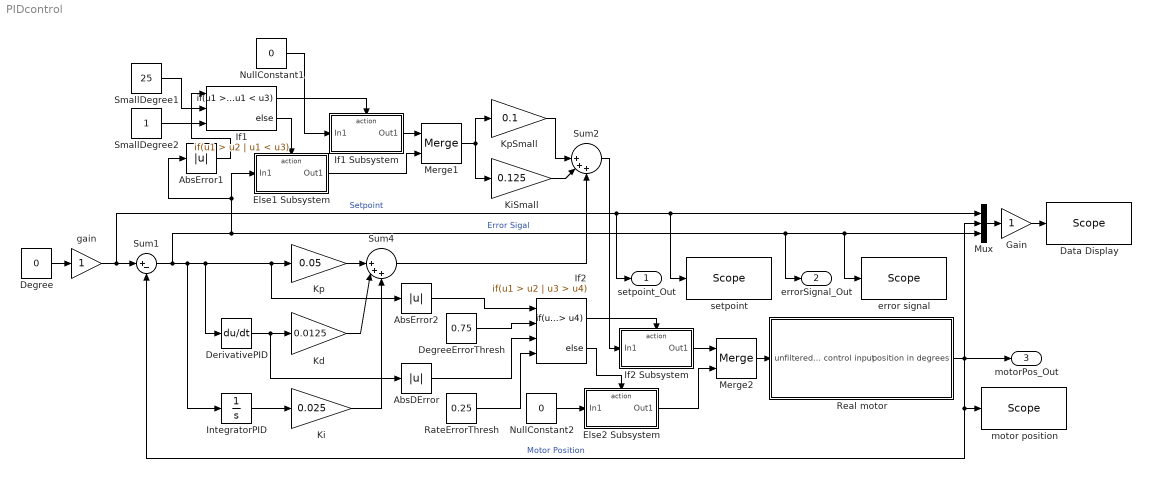
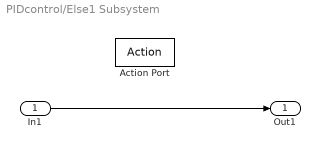
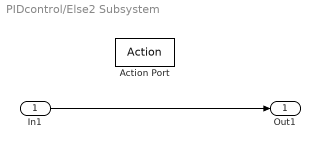
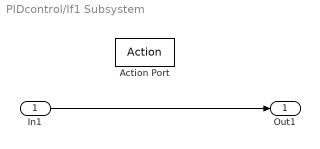
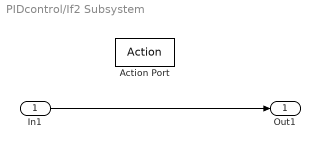
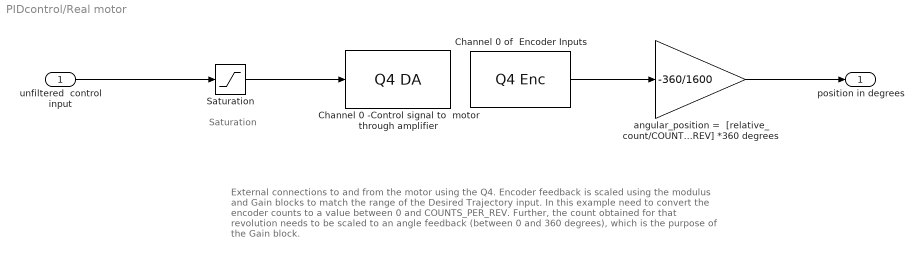
/*
 * PIDcontrol.c
 *
 * Academic Student License -- for use by students to meet course
 * requirements and perform academic research at degree granting
 * institutions only.  Not for government, commercial, or other
 * organizational use.
 *
 * Code generation for model "PIDcontrol".
 *
 * Model version              : 1.109
 * Simulink Coder version : 8.12 (R2017a) 16-Feb-2017
 * C source code generated on : Wed Apr 11 17:29:05 2018
 *
 * Target selection: slrt.tlc
 * Note: GRT includes extra infrastructure and instrumentation for prototyping
 * Embedded hardware selection: Generic->32-bit x86 compatible
 * Code generation objectives: Unspecified
 * Validation result: Not run
 */

#include "rt_logging_mmi.h"
#include "PIDcontrol_capi.h"
#include "PIDcontrol.h"
#include "PIDcontrol_private.h"

/* Block signals (auto storage) */
B_PIDcontrol_T PIDcontrol_B;

/* Continuous states */
X_PIDcontrol_T PIDcontrol_X;

/* Block states (auto storage) */
DW_PIDcontrol_T PIDcontrol_DW;

/* External outputs (root outports fed by signals with auto storage) */
ExtY_PIDcontrol_T PIDcontrol_Y;

/* Real-time model */
RT_MODEL_PIDcontrol_T PIDcontrol_M_;
RT_MODEL_PIDcontrol_T *const PIDcontrol_M = &PIDcontrol_M_;

/*
 * This function updates continuous states using the ODE3 fixed-step
 * solver algorithm
 */
static void rt_ertODEUpdateContinuousStates(RTWSolverInfo *si )
{
  /* Solver Matrices */
  static const real_T rt_ODE3_A[3] = {
    1.0/2.0, 3.0/4.0, 1.0
  };

  static const real_T rt_ODE3_B[3][3] = {
    { 1.0/2.0, 0.0, 0.0 },

    { 0.0, 3.0/4.0, 0.0 },

    { 2.0/9.0, 1.0/3.0, 4.0/9.0 }
  };

  time_T t = rtsiGetT(si);
  time_T tnew = rtsiGetSolverStopTime(si);
  time_T h = rtsiGetStepSize(si);
  real_T *x = rtsiGetContStates(si);
  ODE3_IntgData *id = (ODE3_IntgData *)rtsiGetSolverData(si);
  real_T *y = id->y;
  real_T *f0 = id->f[0];
  real_T *f1 = id->f[1];
  real_T *f2 = id->f[2];
  real_T hB[3];
  int_T i;
  int_T nXc = 1;
  rtsiSetSimTimeStep(si,MINOR_TIME_STEP);

  /* Save the state values at time t in y, we'll use x as ynew. */
  (void) memcpy(y, x,
                (uint_T)nXc*sizeof(real_T));

  /* Assumes that rtsiSetT and ModelOutputs are up-to-date */
  /* f0 = f(t,y) */
  rtsiSetdX(si, f0);
  PIDcontrol_derivatives();

  /* f(:,2) = feval(odefile, t + hA(1), y + f*hB(:,1), args(:)(*)); */
  hB[0] = h * rt_ODE3_B[0][0];
  for (i = 0; i < nXc; i++) {
    x[i] = y[i] + (f0[i]*hB[0]);
  }

  rtsiSetT(si, t + h*rt_ODE3_A[0]);
  rtsiSetdX(si, f1);
  PIDcontrol_output();
  PIDcontrol_derivatives();

  /* f(:,3) = feval(odefile, t + hA(2), y + f*hB(:,2), args(:)(*)); */
  for (i = 0; i <= 1; i++) {
    hB[i] = h * rt_ODE3_B[1][i];
  }

  for (i = 0; i < nXc; i++) {
    x[i] = y[i] + (f0[i]*hB[0] + f1[i]*hB[1]);
  }

  rtsiSetT(si, t + h*rt_ODE3_A[1]);
  rtsiSetdX(si, f2);
  PIDcontrol_output();
  PIDcontrol_derivatives();

  /* tnew = t + hA(3);
     ynew = y + f*hB(:,3); */
  for (i = 0; i <= 2; i++) {
    hB[i] = h * rt_ODE3_B[2][i];
  }

  for (i = 0; i < nXc; i++) {
    x[i] = y[i] + (f0[i]*hB[0] + f1[i]*hB[1] + f2[i]*hB[2]);
  }

  rtsiSetT(si, tnew);
  rtsiSetSimTimeStep(si,MAJOR_TIME_STEP);
}

/*
 * Output and update for action system:
 *    '<Root>/If1 Subsystem'
 *    '<Root>/Else1 Subsystem'
 *    '<Root>/If2 Subsystem'
 *    '<Root>/Else2 Subsystem'
 */
void PIDcontrol_If1Subsystem(real_T rtu_In1, real_T *rty_Out1)
{
  /* Inport: '<S4>/In1' */
  *rty_Out1 = rtu_In1;
}

/* Model output function */
void PIDcontrol_output(void)
{
  real_T *lastU;
  real_T lastTime;
  int8_T rtAction;
  real_T u1;
  real_T u2;
  if (rtmIsMajorTimeStep(PIDcontrol_M)) {
    /* set solver stop time */
    if (!(PIDcontrol_M->Timing.clockTick0+1)) {
      rtsiSetSolverStopTime(&PIDcontrol_M->solverInfo,
                            ((PIDcontrol_M->Timing.clockTickH0 + 1) *
        PIDcontrol_M->Timing.stepSize0 * 4294967296.0));
    } else {
      rtsiSetSolverStopTime(&PIDcontrol_M->solverInfo,
                            ((PIDcontrol_M->Timing.clockTick0 + 1) *
        PIDcontrol_M->Timing.stepSize0 + PIDcontrol_M->Timing.clockTickH0 *
        PIDcontrol_M->Timing.stepSize0 * 4294967296.0));
    }
  }                                    /* end MajorTimeStep */

  /* Update absolute time of base rate at minor time step */
  if (rtmIsMinorTimeStep(PIDcontrol_M)) {
    PIDcontrol_M->Timing.t[0] = rtsiGetT(&PIDcontrol_M->solverInfo);
  }

  /* Reset subsysRan breadcrumbs */
  srClearBC(PIDcontrol_DW.If1Subsystem.If1Subsystem_SubsysRanBC);
  if (rtmIsMajorTimeStep(PIDcontrol_M)) {
    /* Gain: '<Root>/gain' incorporates:
     *  Constant: '<Root>/Degree'
     */
    PIDcontrol_B.Setpoint = PIDcontrol_P.gain_Gain * PIDcontrol_P.Degree_Value;

    /* Outport: '<Root>/setpoint_Out' */
    PIDcontrol_Y.setpoint_Out = PIDcontrol_B.Setpoint;

    /* S-Function (encquanserq8): '<S6>/Channel 0 of  Encoder Inputs ' */

    /* Level2 S-Function Block: '<S6>/Channel 0 of  Encoder Inputs ' (encquanserq8) */
    {
      SimStruct *rts = PIDcontrol_M->childSfunctions[0];
      sfcnOutputs(rts,1);
    }

    /* Gain: '<S6>/angular_position =  [relative_count//COUNTS_PER_REV] *360 degrees' */
    PIDcontrol_B.angular_positionrelative_countC =
      PIDcontrol_P.angular_positionrelative_countC *
      PIDcontrol_B.Channel0ofEncoderInputs;

    /* Sum: '<Root>/Sum1' */
    PIDcontrol_B.ErrorSigal = PIDcontrol_B.Setpoint
      - PIDcontrol_B.angular_positionrelative_countC;

    /* Outport: '<Root>/errorSignal_Out' */
    PIDcontrol_Y.errorSignal_Out = PIDcontrol_B.ErrorSigal;

    /* Outport: '<Root>/motorPos_Out' */
    PIDcontrol_Y.motorPos_Out = PIDcontrol_B.angular_positionrelative_countC;

    /* S-Function (scblock): '<S1>/S-Function' */
    /* ok to acquire for <S1>/S-Function */
    PIDcontrol_DW.SFunction_IWORK.AcquireOK = 1;

    /* S-Function (scblock): '<S7>/S-Function' */
    /* ok to acquire for <S7>/S-Function */
    PIDcontrol_DW.SFunction_IWORK_i.AcquireOK = 1;

    /* S-Function (scblock): '<S8>/S-Function' */
    /* ok to acquire for <S8>/S-Function */
    PIDcontrol_DW.SFunction_IWORK_it.AcquireOK = 1;

    /* S-Function (scblock): '<S9>/S-Function' */
    /* ok to acquire for <S9>/S-Function */
    PIDcontrol_DW.SFunction_IWORK_n.AcquireOK = 1;
  }

  /* Derivative: '<Root>/DerivativePID' */
  if ((PIDcontrol_DW.TimeStampA >= PIDcontrol_M->Timing.t[0]) &&
      (PIDcontrol_DW.TimeStampB >= PIDcontrol_M->Timing.t[0])) {
    PIDcontrol_B.DerivativePID = 0.0;
  } else {
    lastTime = PIDcontrol_DW.TimeStampA;
    lastU = &PIDcontrol_DW.LastUAtTimeA;
    if (PIDcontrol_DW.TimeStampA < PIDcontrol_DW.TimeStampB) {
      if (PIDcontrol_DW.TimeStampB < PIDcontrol_M->Timing.t[0]) {
        lastTime = PIDcontrol_DW.TimeStampB;
        lastU = &PIDcontrol_DW.LastUAtTimeB;
      }
    } else {
      if (PIDcontrol_DW.TimeStampA >= PIDcontrol_M->Timing.t[0]) {
        lastTime = PIDcontrol_DW.TimeStampB;
        lastU = &PIDcontrol_DW.LastUAtTimeB;
      }
    }

    lastTime = PIDcontrol_M->Timing.t[0] - lastTime;
    PIDcontrol_B.DerivativePID = (PIDcontrol_B.ErrorSigal - *lastU) / lastTime;
  }

  /* End of Derivative: '<Root>/DerivativePID' */

  /* Abs: '<Root>/AbsDError' */
  PIDcontrol_B.AbsDError = fabs(PIDcontrol_B.DerivativePID);
  if (rtmIsMajorTimeStep(PIDcontrol_M)) {
    /* Abs: '<Root>/AbsError1' */
    PIDcontrol_B.AbsError1 = fabs(PIDcontrol_B.ErrorSigal);

    /* Abs: '<Root>/AbsError2' */
    PIDcontrol_B.AbsError2 = fabs(PIDcontrol_B.ErrorSigal);

    /* If: '<Root>/If1' incorporates:
     *  Constant: '<Root>/NullConstant1'
     *  Constant: '<Root>/SmallDegree1'
     *  Constant: '<Root>/SmallDegree2'
     */
    if (rtmIsMajorTimeStep(PIDcontrol_M)) {
      rtAction = (int8_T)!((PIDcontrol_B.AbsError1 >
                            PIDcontrol_P.SmallDegree1_Value) ||
                           (PIDcontrol_B.AbsError1 <
                            PIDcontrol_P.SmallDegree2_Value));
      PIDcontrol_DW.If1_ActiveSubsystem = rtAction;
    } else {
      rtAction = PIDcontrol_DW.If1_ActiveSubsystem;
    }

    switch (rtAction) {
     case 0:
      /* Outputs for IfAction SubSystem: '<Root>/If1 Subsystem' incorporates:
       *  ActionPort: '<S4>/Action Port'
       */
      PIDcontrol_If1Subsystem(PIDcontrol_P.NullConstant1_Value,
        &PIDcontrol_B.Merge1);
      if (rtmIsMajorTimeStep(PIDcontrol_M)) {
        srUpdateBC(PIDcontrol_DW.If1Subsystem.If1Subsystem_SubsysRanBC);
      }

      /* End of Outputs for SubSystem: '<Root>/If1 Subsystem' */
      break;

     case 1:
      /* Outputs for IfAction SubSystem: '<Root>/Else1 Subsystem' incorporates:
       *  ActionPort: '<S2>/Action Port'
       */
      PIDcontrol_If1Subsystem(PIDcontrol_B.ErrorSigal, &PIDcontrol_B.Merge1);
      if (rtmIsMajorTimeStep(PIDcontrol_M)) {
        srUpdateBC(PIDcontrol_DW.Else1Subsystem.If1Subsystem_SubsysRanBC);
      }

      /* End of Outputs for SubSystem: '<Root>/Else1 Subsystem' */
      break;
    }

    /* End of If: '<Root>/If1' */

    /* Gain: '<Root>/KpSmall' */
    PIDcontrol_B.KpSmall = PIDcontrol_P.KpSmall_Gain * PIDcontrol_B.Merge1;

    /* Gain: '<Root>/KiSmall' */
    PIDcontrol_B.KiSmall = PIDcontrol_P.KiSmall_Gain * PIDcontrol_B.Merge1;

    /* Gain: '<Root>/Kp' */
    PIDcontrol_B.Kp = PIDcontrol_P.Kp_Gain * PIDcontrol_B.ErrorSigal;
  }

  /* Gain: '<Root>/Kd' */
  PIDcontrol_B.Kd = PIDcontrol_P.Kd_Gain * PIDcontrol_B.DerivativePID;

  /* Integrator: '<Root>/IntegratorPID' */
  PIDcontrol_B.IntegratorPID = PIDcontrol_X.IntegratorPID_CSTATE;

  /* Gain: '<Root>/Ki' */
  PIDcontrol_B.Ki = PIDcontrol_P.Ki_Gain * PIDcontrol_B.IntegratorPID;

  /* Sum: '<Root>/Sum4' */
  PIDcontrol_B.Sum4 = (PIDcontrol_B.Kp + PIDcontrol_B.Kd) + PIDcontrol_B.Ki;

  /* Sum: '<Root>/Sum2' */
  PIDcontrol_B.Sum2 = (PIDcontrol_B.KpSmall + PIDcontrol_B.KiSmall) +
    PIDcontrol_B.Sum4;

  /* If: '<Root>/If2' incorporates:
   *  Constant: '<Root>/DegreeErrorThresh'
   *  Constant: '<Root>/NullConstant2'
   *  Constant: '<Root>/RateErrorThresh'
   */
  if (rtmIsMajorTimeStep(PIDcontrol_M)) {
    rtAction = (int8_T)!((PIDcontrol_B.AbsError2 >
                          PIDcontrol_P.DegreeErrorThresh_Value) ||
                         (PIDcontrol_B.AbsDError >
                          PIDcontrol_P.RateErrorThresh_Value));
    PIDcontrol_DW.If2_ActiveSubsystem = rtAction;
  } else {
    rtAction = PIDcontrol_DW.If2_ActiveSubsystem;
  }

  switch (rtAction) {
   case 0:
    /* Outputs for IfAction SubSystem: '<Root>/If2 Subsystem' incorporates:
     *  ActionPort: '<S5>/Action Port'
     */
    PIDcontrol_If1Subsystem(PIDcontrol_B.Sum2, &PIDcontrol_B.Merge2);
    if (rtmIsMajorTimeStep(PIDcontrol_M)) {
      srUpdateBC(PIDcontrol_DW.If2Subsystem.If1Subsystem_SubsysRanBC);
    }

    /* End of Outputs for SubSystem: '<Root>/If2 Subsystem' */
    break;

   case 1:
    /* Outputs for IfAction SubSystem: '<Root>/Else2 Subsystem' incorporates:
     *  ActionPort: '<S3>/Action Port'
     */
    PIDcontrol_If1Subsystem(PIDcontrol_P.NullConstant2_Value,
      &PIDcontrol_B.Merge2);
    if (rtmIsMajorTimeStep(PIDcontrol_M)) {
      srUpdateBC(PIDcontrol_DW.Else2Subsystem.If1Subsystem_SubsysRanBC);
    }

    /* End of Outputs for SubSystem: '<Root>/Else2 Subsystem' */
    break;
  }

  /* End of If: '<Root>/If2' */
  if (rtmIsMajorTimeStep(PIDcontrol_M)) {
    /* Gain: '<Root>/Gain' */
    PIDcontrol_B.Gain[0] = PIDcontrol_P.Gain_Gain * PIDcontrol_B.Setpoint;
    PIDcontrol_B.Gain[1] = PIDcontrol_P.Gain_Gain *
      PIDcontrol_B.angular_positionrelative_countC;
    PIDcontrol_B.Gain[2] = PIDcontrol_P.Gain_Gain * PIDcontrol_B.ErrorSigal;
  }

  /* Saturate: '<S6>/Saturation' */
  lastTime = PIDcontrol_B.Merge2;
  u1 = PIDcontrol_P.Saturation_LowerSat;
  u2 = PIDcontrol_P.Saturation_UpperSat;
  if (lastTime > u2) {
    PIDcontrol_B.Saturation = u2;
  } else if (lastTime < u1) {
    PIDcontrol_B.Saturation = u1;
  } else {
    PIDcontrol_B.Saturation = lastTime;
  }

  /* End of Saturate: '<S6>/Saturation' */
  if (rtmIsMajorTimeStep(PIDcontrol_M)) {
    /* S-Function (daquanserq8): '<S6>/Channel 0 -Control signal to  motor through amplifier ' */

    /* Level2 S-Function Block: '<S6>/Channel 0 -Control signal to  motor through amplifier ' (daquanserq8) */
    {
      SimStruct *rts = PIDcontrol_M->childSfunctions[1];
      sfcnOutputs(rts,1);
    }
  }
}

/* Model update function */
void PIDcontrol_update(void)
{
  real_T *lastU;

  /* Update for Derivative: '<Root>/DerivativePID' */
  if (PIDcontrol_DW.TimeStampA == (rtInf)) {
    PIDcontrol_DW.TimeStampA = PIDcontrol_M->Timing.t[0];
    lastU = &PIDcontrol_DW.LastUAtTimeA;
  } else if (PIDcontrol_DW.TimeStampB == (rtInf)) {
    PIDcontrol_DW.TimeStampB = PIDcontrol_M->Timing.t[0];
    lastU = &PIDcontrol_DW.LastUAtTimeB;
  } else if (PIDcontrol_DW.TimeStampA < PIDcontrol_DW.TimeStampB) {
    PIDcontrol_DW.TimeStampA = PIDcontrol_M->Timing.t[0];
    lastU = &PIDcontrol_DW.LastUAtTimeA;
  } else {
    PIDcontrol_DW.TimeStampB = PIDcontrol_M->Timing.t[0];
    lastU = &PIDcontrol_DW.LastUAtTimeB;
  }

  *lastU = PIDcontrol_B.ErrorSigal;

  /* End of Update for Derivative: '<Root>/DerivativePID' */
  if (rtmIsMajorTimeStep(PIDcontrol_M)) {
    rt_ertODEUpdateContinuousStates(&PIDcontrol_M->solverInfo);
  }

  /* Update absolute time for base rate */
  /* The "clockTick0" counts the number of times the code of this task has
   * been executed. The absolute time is the multiplication of "clockTick0"
   * and "Timing.stepSize0". Size of "clockTick0" ensures timer will not
   * overflow during the application lifespan selected.
   * Timer of this task consists of two 32 bit unsigned integers.
   * The two integers represent the low bits Timing.clockTick0 and the high bits
   * Timing.clockTickH0. When the low bit overflows to 0, the high bits increment.
   */
  if (!(++PIDcontrol_M->Timing.clockTick0)) {
    ++PIDcontrol_M->Timing.clockTickH0;
  }

  PIDcontrol_M->Timing.t[0] = rtsiGetSolverStopTime(&PIDcontrol_M->solverInfo);

  {
    /* Update absolute timer for sample time: [0.001s, 0.0s] */
    /* The "clockTick1" counts the number of times the code of this task has
     * been executed. The absolute time is the multiplication of "clockTick1"
     * and "Timing.stepSize1". Size of "clockTick1" ensures timer will not
     * overflow during the application lifespan selected.
     * Timer of this task consists of two 32 bit unsigned integers.
     * The two integers represent the low bits Timing.clockTick1 and the high bits
     * Timing.clockTickH1. When the low bit overflows to 0, the high bits increment.
     */
    if (!(++PIDcontrol_M->Timing.clockTick1)) {
      ++PIDcontrol_M->Timing.clockTickH1;
    }

    PIDcontrol_M->Timing.t[1] = PIDcontrol_M->Timing.clockTick1 *
      PIDcontrol_M->Timing.stepSize1 + PIDcontrol_M->Timing.clockTickH1 *
      PIDcontrol_M->Timing.stepSize1 * 4294967296.0;
  }
}
